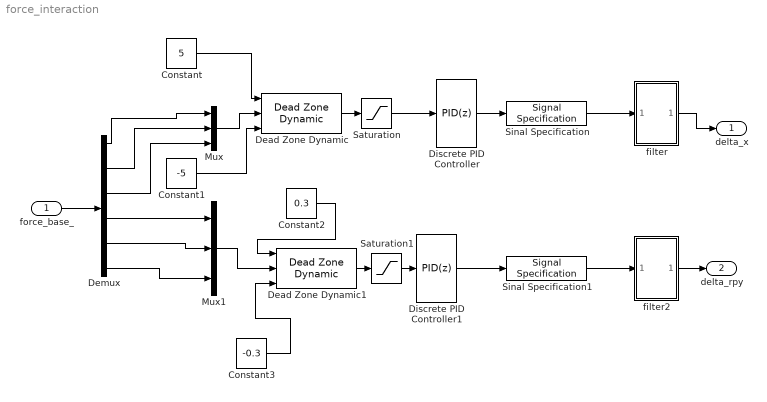
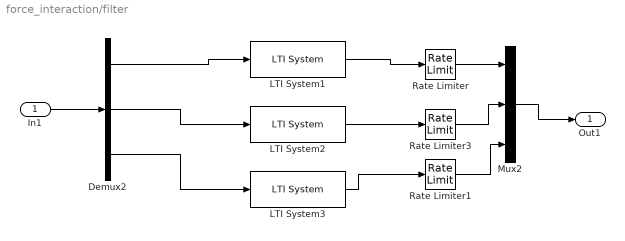
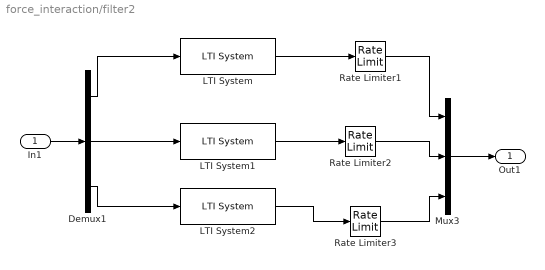
//
// File: force_interaction.cpp
//
// Code generated for Simulink model 'force_interaction'.
//
// Model version                  : 1.192
// Simulink Coder version         : 8.11 (R2016b) 25-Aug-2016
// C/C++ source code generated on : Sun Jun  9 15:50:41 2019
//
// Target selection: ert.tlc
// Embedded hardware selection: Intel->x86-64 (Windows64)
// Code generation objectives: Unspecified
// Validation result: Not run
//
#include "force_interaction.h"

// Model step function
void ForceInteraction::step(real_T (&arg_force_base_)[6], real_T (&arg_delta_x)
  [3], real_T (&arg_delta_rpy)[3])
{
  // local block i/o variables
  real_T rtb_Sum[3];
  real_T rtb_Sum_h[3];
  real_T rtb_RateLimiter3;
  real_T rtb_RateLimiter2;
  real_T rtb_RateLimiter1;
  real_T rateLimiterRate;
  real_T rtb_FilterCoefficient;
  real_T rtb_FilterCoefficient_n;
  real_T rtb_Saturation_idx_0;
  real_T rtb_FilterCoefficient_idx_0;
  real_T rtb_Saturation_idx_1;
  real_T rtb_FilterCoefficient_idx_1;
  real_T rtb_Saturation1_idx_0;
  real_T rtb_FilterCoefficient_n_idx_0;
  real_T rtb_Saturation1_idx_1;
  real_T rtb_FilterCoefficient_n_idx_1;
  real_T u0;
  real_T u0_0;

  // Switch: '<S1>/Switch' incorporates:
  //   Constant: '<Root>/Constant'
  //   Constant: '<Root>/Constant1'
  //   Inport: '<Root>/force_base_'
  //   RelationalOperator: '<S1>/u_GTE_up'
  //   RelationalOperator: '<S1>/u_GT_lo'
  //   Switch: '<S1>/Switch1'

  if (arg_force_base_[0] >= 5.0) {
    rateLimiterRate = 5.0;
  } else if (arg_force_base_[0] > -5.0) {
    // Switch: '<S1>/Switch1'
    rateLimiterRate = arg_force_base_[0];
  } else {
    rateLimiterRate = -5.0;
  }

  // Sum: '<S1>/Diff' incorporates:
  //   Inport: '<Root>/force_base_'

  u0 = arg_force_base_[0] - rateLimiterRate;

  // Saturate: '<Root>/Saturation'
  if (u0 > 40.0) {
    u0 = 40.0;
  } else {
    if (u0 < -40.0) {
      u0 = -40.0;
    }
  }

  // Gain: '<S3>/Filter Coefficient' incorporates:
  //   DiscreteIntegrator: '<S3>/Filter'
  //   Gain: '<S3>/Derivative Gain'
  //   Sum: '<S3>/SumD'

  rtb_FilterCoefficient = (0.0 * u0 - force_interaction_DW.Filter_DSTATE[0]) *
    5.0;

  // Sum: '<S3>/Sum' incorporates:
  //   DiscreteIntegrator: '<S3>/Integrator'
  //   Gain: '<S3>/Proportional Gain'

  rtb_Sum[0] = (100.0 * u0 + force_interaction_DW.Integrator_DSTATE[0]) +
    rtb_FilterCoefficient;

  // Saturate: '<Root>/Saturation'
  rtb_Saturation_idx_0 = u0;

  // Gain: '<S3>/Filter Coefficient'
  rtb_FilterCoefficient_idx_0 = rtb_FilterCoefficient;

  // Switch: '<S1>/Switch' incorporates:
  //   Constant: '<Root>/Constant'
  //   Constant: '<Root>/Constant1'
  //   Inport: '<Root>/force_base_'
  //   RelationalOperator: '<S1>/u_GTE_up'
  //   RelationalOperator: '<S1>/u_GT_lo'
  //   Switch: '<S1>/Switch1'

  if (arg_force_base_[1] >= 5.0) {
    rateLimiterRate = 5.0;
  } else if (arg_force_base_[1] > -5.0) {
    // Switch: '<S1>/Switch1'
    rateLimiterRate = arg_force_base_[1];
  } else {
    rateLimiterRate = -5.0;
  }

  // Sum: '<S1>/Diff' incorporates:
  //   Inport: '<Root>/force_base_'

  u0 = arg_force_base_[1] - rateLimiterRate;

  // Saturate: '<Root>/Saturation'
  if (u0 > 40.0) {
    u0 = 40.0;
  } else {
    if (u0 < -40.0) {
      u0 = -40.0;
    }
  }

  // Gain: '<S3>/Filter Coefficient' incorporates:
  //   DiscreteIntegrator: '<S3>/Filter'
  //   Gain: '<S3>/Derivative Gain'
  //   Sum: '<S3>/SumD'

  rtb_FilterCoefficient = (0.0 * u0 - force_interaction_DW.Filter_DSTATE[1]) *
    5.0;

  // Sum: '<S3>/Sum' incorporates:
  //   DiscreteIntegrator: '<S3>/Integrator'
  //   Gain: '<S3>/Proportional Gain'

  rtb_Sum[1] = (100.0 * u0 + force_interaction_DW.Integrator_DSTATE[1]) +
    rtb_FilterCoefficient;

  // Saturate: '<Root>/Saturation'
  rtb_Saturation_idx_1 = u0;

  // Gain: '<S3>/Filter Coefficient'
  rtb_FilterCoefficient_idx_1 = rtb_FilterCoefficient;

  // Switch: '<S1>/Switch' incorporates:
  //   Constant: '<Root>/Constant'
  //   Constant: '<Root>/Constant1'
  //   Inport: '<Root>/force_base_'
  //   RelationalOperator: '<S1>/u_GTE_up'
  //   RelationalOperator: '<S1>/u_GT_lo'
  //   Switch: '<S1>/Switch1'

  if (arg_force_base_[2] >= 5.0) {
    rateLimiterRate = 5.0;
  } else if (arg_force_base_[2] > -5.0) {
    // Switch: '<S1>/Switch1'
    rateLimiterRate = arg_force_base_[2];
  } else {
    rateLimiterRate = -5.0;
  }

  // Sum: '<S1>/Diff' incorporates:
  //   Inport: '<Root>/force_base_'

  u0 = arg_force_base_[2] - rateLimiterRate;

  // Saturate: '<Root>/Saturation'
  if (u0 > 40.0) {
    u0 = 40.0;
  } else {
    if (u0 < -40.0) {
      u0 = -40.0;
    }
  }

  // Gain: '<S3>/Filter Coefficient' incorporates:
  //   DiscreteIntegrator: '<S3>/Filter'
  //   Gain: '<S3>/Derivative Gain'
  //   Sum: '<S3>/SumD'

  rtb_FilterCoefficient = (0.0 * u0 - force_interaction_DW.Filter_DSTATE[2]) *
    5.0;

  // Sum: '<S3>/Sum' incorporates:
  //   DiscreteIntegrator: '<S3>/Integrator'
  //   Gain: '<S3>/Proportional Gain'

  rtb_Sum[2] = (100.0 * u0 + force_interaction_DW.Integrator_DSTATE[2]) +
    rtb_FilterCoefficient;

  // DiscreteStateSpace: '<S7>/Internal'
  {
    rtb_RateLimiter3 = 0.0600918954997801*force_interaction_DW.Internal_DSTATE;
    rtb_RateLimiter3 += 0.0018814114433874374*rtb_Sum[0];
  }

  // RateLimiter: '<S5>/Rate Limiter'
  rateLimiterRate = rtb_RateLimiter3 - force_interaction_DW.PrevY;
  if (rateLimiterRate > 0.008) {
    rtb_RateLimiter3 = force_interaction_DW.PrevY + 0.008;
  } else {
    if (rateLimiterRate < -0.008) {
      rtb_RateLimiter3 = force_interaction_DW.PrevY + -0.008;
    }
  }

  force_interaction_DW.PrevY = rtb_RateLimiter3;

  // End of RateLimiter: '<S5>/Rate Limiter'

  // DiscreteStateSpace: '<S8>/Internal'
  {
    rtb_RateLimiter2 = 0.0600918954997801*force_interaction_DW.Internal_DSTATE_m;
    rtb_RateLimiter2 += 0.0018814114433874374*rtb_Sum[1];
  }

  // RateLimiter: '<S5>/Rate Limiter3'
  rateLimiterRate = rtb_RateLimiter2 - force_interaction_DW.PrevY_m;
  if (rateLimiterRate > 0.008) {
    rtb_RateLimiter2 = force_interaction_DW.PrevY_m + 0.008;
  } else {
    if (rateLimiterRate < -0.008) {
      rtb_RateLimiter2 = force_interaction_DW.PrevY_m + -0.008;
    }
  }

  force_interaction_DW.PrevY_m = rtb_RateLimiter2;

  // End of RateLimiter: '<S5>/Rate Limiter3'

  // DiscreteStateSpace: '<S9>/Internal'
  {
    rtb_RateLimiter1 = 0.0600918954997801*
      force_interaction_DW.Internal_DSTATE_mt;
    rtb_RateLimiter1 += 0.0018814114433874374*rtb_Sum[2];
  }

  // RateLimiter: '<S5>/Rate Limiter1'
  rateLimiterRate = rtb_RateLimiter1 - force_interaction_DW.PrevY_b;
  if (rateLimiterRate > 0.008) {
    rtb_RateLimiter1 = force_interaction_DW.PrevY_b + 0.008;
  } else {
    if (rateLimiterRate < -0.008) {
      rtb_RateLimiter1 = force_interaction_DW.PrevY_b + -0.008;
    }
  }

  force_interaction_DW.PrevY_b = rtb_RateLimiter1;

  // End of RateLimiter: '<S5>/Rate Limiter1'

  // Outport: '<Root>/delta_x'
  arg_delta_x[0] = rtb_RateLimiter3;
  arg_delta_x[1] = rtb_RateLimiter2;
  arg_delta_x[2] = rtb_RateLimiter1;

  // Switch: '<S2>/Switch' incorporates:
  //   Constant: '<Root>/Constant2'
  //   Constant: '<Root>/Constant3'
  //   Inport: '<Root>/force_base_'
  //   RelationalOperator: '<S2>/u_GTE_up'
  //   RelationalOperator: '<S2>/u_GT_lo'
  //   Saturate: '<Root>/Saturation1'
  //   Sum: '<S2>/Diff'
  //   Switch: '<S2>/Switch1'

  if (arg_force_base_[3] >= 0.3) {
    rateLimiterRate = 0.3;
  } else if (arg_force_base_[3] > -0.3) {
    rateLimiterRate = arg_force_base_[3];
  } else {
    rateLimiterRate = -0.3;
  }

  // Sum: '<S2>/Diff' incorporates:
  //   Inport: '<Root>/force_base_'
  //   RelationalOperator: '<S2>/u_GTE_up'
  //   RelationalOperator: '<S2>/u_GT_lo'
  //   Saturate: '<Root>/Saturation1'
  //   Switch: '<S2>/Switch1'

  u0_0 = arg_force_base_[3] - rateLimiterRate;

  // Saturate: '<Root>/Saturation1'
  if (u0_0 > 3.0) {
    u0_0 = 3.0;
  } else {
    if (u0_0 < -3.0) {
      u0_0 = -3.0;
    }
  }

  // Gain: '<S4>/Filter Coefficient' incorporates:
  //   DiscreteIntegrator: '<S4>/Filter'
  //   Gain: '<S4>/Derivative Gain'
  //   Sum: '<S4>/SumD'

  rtb_FilterCoefficient_n = (0.0 * u0_0 - force_interaction_DW.Filter_DSTATE_b[0])
    * 5.0;

  // Sum: '<S4>/Sum' incorporates:
  //   DiscreteIntegrator: '<S4>/Integrator'
  //   Gain: '<S4>/Proportional Gain'

  rtb_Sum_h[0] = (0.0 * u0_0 + force_interaction_DW.Integrator_DSTATE_h[0]) +
    rtb_FilterCoefficient_n;

  // Saturate: '<Root>/Saturation1'
  rtb_Saturation1_idx_0 = u0_0;

  // Gain: '<S4>/Filter Coefficient'
  rtb_FilterCoefficient_n_idx_0 = rtb_FilterCoefficient_n;

  // Switch: '<S2>/Switch' incorporates:
  //   Constant: '<Root>/Constant2'
  //   Constant: '<Root>/Constant3'
  //   Inport: '<Root>/force_base_'
  //   RelationalOperator: '<S2>/u_GTE_up'
  //   RelationalOperator: '<S2>/u_GT_lo'
  //   Saturate: '<Root>/Saturation1'
  //   Sum: '<S2>/Diff'
  //   Switch: '<S2>/Switch1'

  if (arg_force_base_[4] >= 0.3) {
    rateLimiterRate = 0.3;
  } else if (arg_force_base_[4] > -0.3) {
    rateLimiterRate = arg_force_base_[4];
  } else {
    rateLimiterRate = -0.3;
  }

  // Sum: '<S2>/Diff' incorporates:
  //   Inport: '<Root>/force_base_'
  //   RelationalOperator: '<S2>/u_GTE_up'
  //   RelationalOperator: '<S2>/u_GT_lo'
  //   Saturate: '<Root>/Saturation1'
  //   Switch: '<S2>/Switch1'

  u0_0 = arg_force_base_[4] - rateLimiterRate;

  // Saturate: '<Root>/Saturation1'
  if (u0_0 > 3.0) {
    u0_0 = 3.0;
  } else {
    if (u0_0 < -3.0) {
      u0_0 = -3.0;
    }
  }

  // Gain: '<S4>/Filter Coefficient' incorporates:
  //   DiscreteIntegrator: '<S4>/Filter'
  //   Gain: '<S4>/Derivative Gain'
  //   Sum: '<S4>/SumD'

  rtb_FilterCoefficient_n = (0.0 * u0_0 - force_interaction_DW.Filter_DSTATE_b[1])
    * 5.0;

  // Sum: '<S4>/Sum' incorporates:
  //   DiscreteIntegrator: '<S4>/Integrator'
  //   Gain: '<S4>/Proportional Gain'

  rtb_Sum_h[1] = (0.0 * u0_0 + force_interaction_DW.Integrator_DSTATE_h[1]) +
    rtb_FilterCoefficient_n;

  // Saturate: '<Root>/Saturation1'
  rtb_Saturation1_idx_1 = u0_0;

  // Gain: '<S4>/Filter Coefficient'
  rtb_FilterCoefficient_n_idx_1 = rtb_FilterCoefficient_n;

  // Switch: '<S2>/Switch' incorporates:
  //   Constant: '<Root>/Constant2'
  //   Constant: '<Root>/Constant3'
  //   Inport: '<Root>/force_base_'
  //   RelationalOperator: '<S2>/u_GTE_up'
  //   RelationalOperator: '<S2>/u_GT_lo'
  //   Saturate: '<Root>/Saturation1'
  //   Sum: '<S2>/Diff'
  //   Switch: '<S2>/Switch1'

  if (arg_force_base_[5] >= 0.3) {
    rateLimiterRate = 0.3;
  } else if (arg_force_base_[5] > -0.3) {
    rateLimiterRate = arg_force_base_[5];
  } else {
    rateLimiterRate = -0.3;
  }

  // Sum: '<S2>/Diff' incorporates:
  //   Inport: '<Root>/force_base_'
  //   RelationalOperator: '<S2>/u_GTE_up'
  //   RelationalOperator: '<S2>/u_GT_lo'
  //   Saturate: '<Root>/Saturation1'
  //   Switch: '<S2>/Switch1'

  u0_0 = arg_force_base_[5] - rateLimiterRate;

  // Saturate: '<Root>/Saturation1'
  if (u0_0 > 3.0) {
    u0_0 = 3.0;
  } else {
    if (u0_0 < -3.0) {
      u0_0 = -3.0;
    }
  }

  // Gain: '<S4>/Filter Coefficient' incorporates:
  //   DiscreteIntegrator: '<S4>/Filter'
  //   Gain: '<S4>/Derivative Gain'
  //   Sum: '<S4>/SumD'

  rtb_FilterCoefficient_n = (0.0 * u0_0 - force_interaction_DW.Filter_DSTATE_b[2])
    * 5.0;

  // Sum: '<S4>/Sum' incorporates:
  //   DiscreteIntegrator: '<S4>/Integrator'
  //   Gain: '<S4>/Proportional Gain'

  rtb_Sum_h[2] = (0.0 * u0_0 + force_interaction_DW.Integrator_DSTATE_h[2]) +
    rtb_FilterCoefficient_n;

  // DiscreteStateSpace: '<S19>/Internal'
  {
    rtb_RateLimiter1 = 0.0600918954997801*force_interaction_DW.Internal_DSTATE_a;
    rtb_RateLimiter1 += 0.0018814114433874374*rtb_Sum_h[0];
  }

  // RateLimiter: '<S6>/Rate Limiter1'
  rateLimiterRate = rtb_RateLimiter1 - force_interaction_DW.PrevY_me;
  if (rateLimiterRate > 0.008) {
    rtb_RateLimiter1 = force_interaction_DW.PrevY_me + 0.008;
  } else {
    if (rateLimiterRate < -0.008) {
      rtb_RateLimiter1 = force_interaction_DW.PrevY_me + -0.008;
    }
  }

  force_interaction_DW.PrevY_me = rtb_RateLimiter1;

  // End of RateLimiter: '<S6>/Rate Limiter1'

  // DiscreteStateSpace: '<S20>/Internal'
  {
    rtb_RateLimiter2 = 0.0600918954997801*force_interaction_DW.Internal_DSTATE_p;
    rtb_RateLimiter2 += 0.0018814114433874374*rtb_Sum_h[1];
  }

  // RateLimiter: '<S6>/Rate Limiter2'
  rateLimiterRate = rtb_RateLimiter2 - force_interaction_DW.PrevY_m0;
  if (rateLimiterRate > 0.008) {
    rtb_RateLimiter2 = force_interaction_DW.PrevY_m0 + 0.008;
  } else {
    if (rateLimiterRate < -0.008) {
      rtb_RateLimiter2 = force_interaction_DW.PrevY_m0 + -0.008;
    }
  }

  force_interaction_DW.PrevY_m0 = rtb_RateLimiter2;

  // End of RateLimiter: '<S6>/Rate Limiter2'

  // DiscreteStateSpace: '<S21>/Internal'
  {
    rtb_RateLimiter3 = 0.0600918954997801*
      force_interaction_DW.Internal_DSTATE_mg;
    rtb_RateLimiter3 += 0.0018814114433874374*rtb_Sum_h[2];
  }

  // RateLimiter: '<S6>/Rate Limiter3'
  rateLimiterRate = rtb_RateLimiter3 - force_interaction_DW.PrevY_c;
  if (rateLimiterRate > 0.008) {
    rtb_RateLimiter3 = force_interaction_DW.PrevY_c + 0.008;
  } else {
    if (rateLimiterRate < -0.008) {
      rtb_RateLimiter3 = force_interaction_DW.PrevY_c + -0.008;
    }
  }

  force_interaction_DW.PrevY_c = rtb_RateLimiter3;

  // End of RateLimiter: '<S6>/Rate Limiter3'

  // Outport: '<Root>/delta_rpy'
  arg_delta_rpy[0] = rtb_RateLimiter1;
  arg_delta_rpy[1] = rtb_RateLimiter2;
  arg_delta_rpy[2] = rtb_RateLimiter3;

  // Update for DiscreteIntegrator: '<S3>/Integrator' incorporates:
  //   Gain: '<S3>/Integral Gain'

  force_interaction_DW.Integrator_DSTATE[0] += 0.0 * rtb_Saturation_idx_0 *
    0.002;

  // Update for DiscreteIntegrator: '<S3>/Filter'
  force_interaction_DW.Filter_DSTATE[0] += 0.002 * rtb_FilterCoefficient_idx_0;

  // Update for DiscreteIntegrator: '<S3>/Integrator' incorporates:
  //   Gain: '<S3>/Integral Gain'

  force_interaction_DW.Integrator_DSTATE[1] += 0.0 * rtb_Saturation_idx_1 *
    0.002;

  // Update for DiscreteIntegrator: '<S3>/Filter'
  force_interaction_DW.Filter_DSTATE[1] += 0.002 * rtb_FilterCoefficient_idx_1;

  // Update for DiscreteIntegrator: '<S3>/Integrator' incorporates:
  //   Gain: '<S3>/Integral Gain'

  force_interaction_DW.Integrator_DSTATE[2] += 0.0 * u0 * 0.002;

  // Update for DiscreteIntegrator: '<S3>/Filter'
  force_interaction_DW.Filter_DSTATE[2] += 0.002 * rtb_FilterCoefficient;

  // Update for DiscreteStateSpace: '<S7>/Internal'
  {
    real_T xnew[1];
    xnew[0] = 0.99623717711322513*force_interaction_DW.Internal_DSTATE;
    xnew[0] += 0.0625*rtb_Sum[0];
    (void) memcpy(&force_interaction_DW.Internal_DSTATE, xnew,
                  sizeof(real_T)*1);
  }

  // Update for DiscreteStateSpace: '<S8>/Internal'
  {
    real_T xnew[1];
    xnew[0] = 0.99623717711322513*force_interaction_DW.Internal_DSTATE_m;
    xnew[0] += 0.0625*rtb_Sum[1];
    (void) memcpy(&force_interaction_DW.Internal_DSTATE_m, xnew,
                  sizeof(real_T)*1);
  }

  // Update for DiscreteStateSpace: '<S9>/Internal'
  {
    real_T xnew[1];
    xnew[0] = 0.99623717711322513*force_interaction_DW.Internal_DSTATE_mt;
    xnew[0] += 0.0625*rtb_Sum[2];
    (void) memcpy(&force_interaction_DW.Internal_DSTATE_mt, xnew,
                  sizeof(real_T)*1);
  }

  // Update for DiscreteIntegrator: '<S4>/Integrator' incorporates:
  //   Gain: '<S4>/Integral Gain'

  force_interaction_DW.Integrator_DSTATE_h[0] += 0.0 * rtb_Saturation1_idx_0 *
    0.002;

  // Update for DiscreteIntegrator: '<S4>/Filter'
  force_interaction_DW.Filter_DSTATE_b[0] += 0.002 *
    rtb_FilterCoefficient_n_idx_0;

  // Update for DiscreteIntegrator: '<S4>/Integrator' incorporates:
  //   Gain: '<S4>/Integral Gain'

  force_interaction_DW.Integrator_DSTATE_h[1] += 0.0 * rtb_Saturation1_idx_1 *
    0.002;

  // Update for DiscreteIntegrator: '<S4>/Filter'
  force_interaction_DW.Filter_DSTATE_b[1] += 0.002 *
    rtb_FilterCoefficient_n_idx_1;

  // Update for DiscreteIntegrator: '<S4>/Integrator' incorporates:
  //   Gain: '<S4>/Integral Gain'

  force_interaction_DW.Integrator_DSTATE_h[2] += 0.0 * u0_0 * 0.002;

  // Update for DiscreteIntegrator: '<S4>/Filter'
  force_interaction_DW.Filter_DSTATE_b[2] += 0.002 * rtb_FilterCoefficient_n;

  // Update for DiscreteStateSpace: '<S19>/Internal'
  {
    real_T xnew[1];
    xnew[0] = 0.99623717711322513*force_interaction_DW.Internal_DSTATE_a;
    xnew[0] += 0.0625*rtb_Sum_h[0];
    (void) memcpy(&force_interaction_DW.Internal_DSTATE_a, xnew,
                  sizeof(real_T)*1);
  }

  // Update for DiscreteStateSpace: '<S20>/Internal'
  {
    real_T xnew[1];
    xnew[0] = 0.99623717711322513*force_interaction_DW.Internal_DSTATE_p;
    xnew[0] += 0.0625*rtb_Sum_h[1];
    (void) memcpy(&force_interaction_DW.Internal_DSTATE_p, xnew,
                  sizeof(real_T)*1);
  }

  // Update for DiscreteStateSpace: '<S21>/Internal'
  {
    real_T xnew[1];
    xnew[0] = 0.99623717711322513*force_interaction_DW.Internal_DSTATE_mg;
    xnew[0] += 0.0625*rtb_Sum_h[2];
    (void) memcpy(&force_interaction_DW.Internal_DSTATE_mg, xnew,
                  sizeof(real_T)*1);
  }
}
